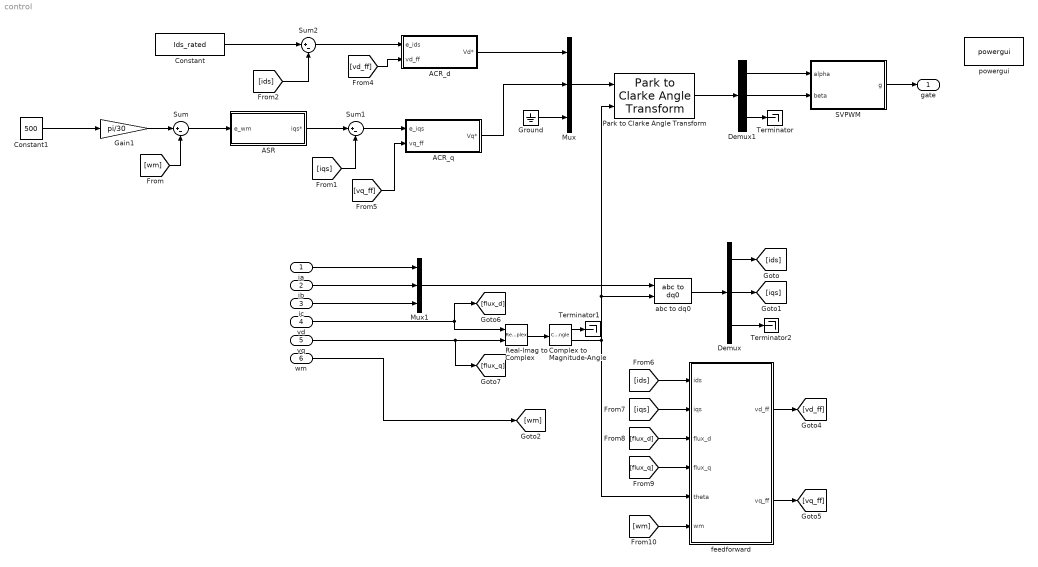
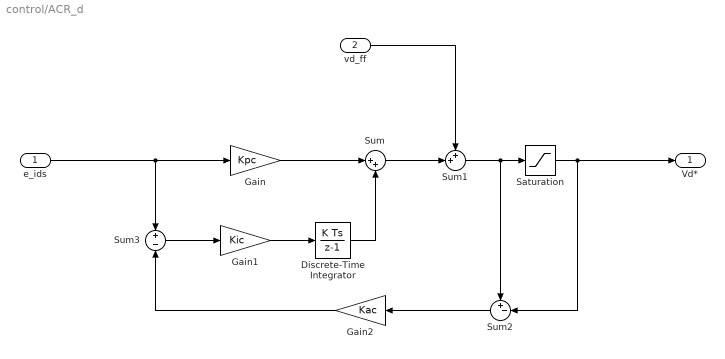
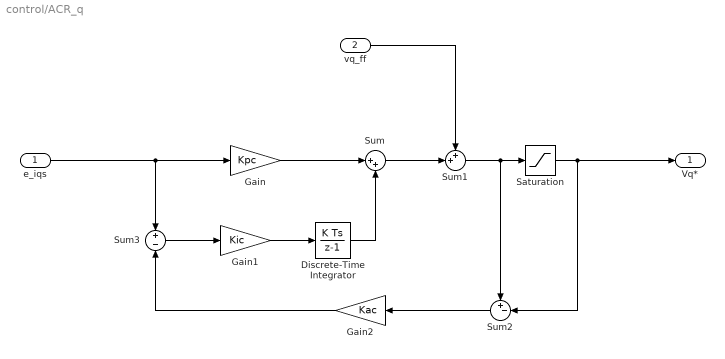
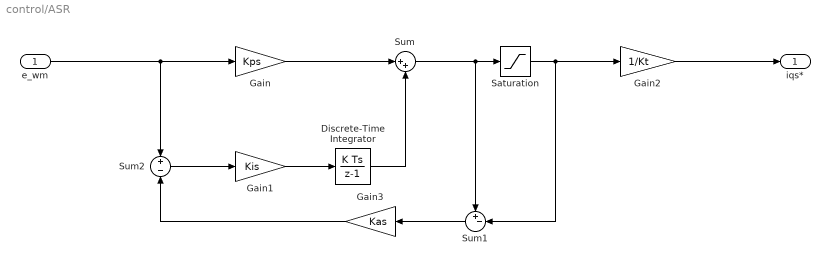
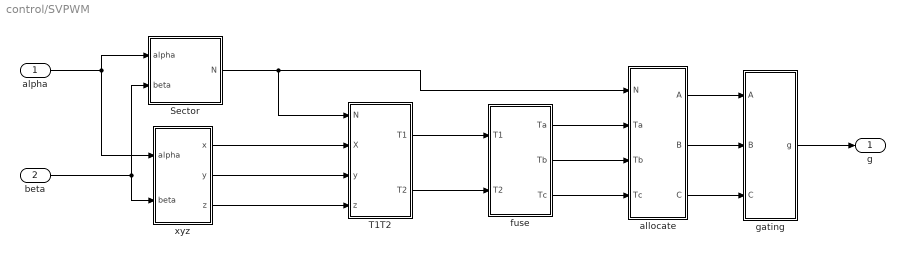
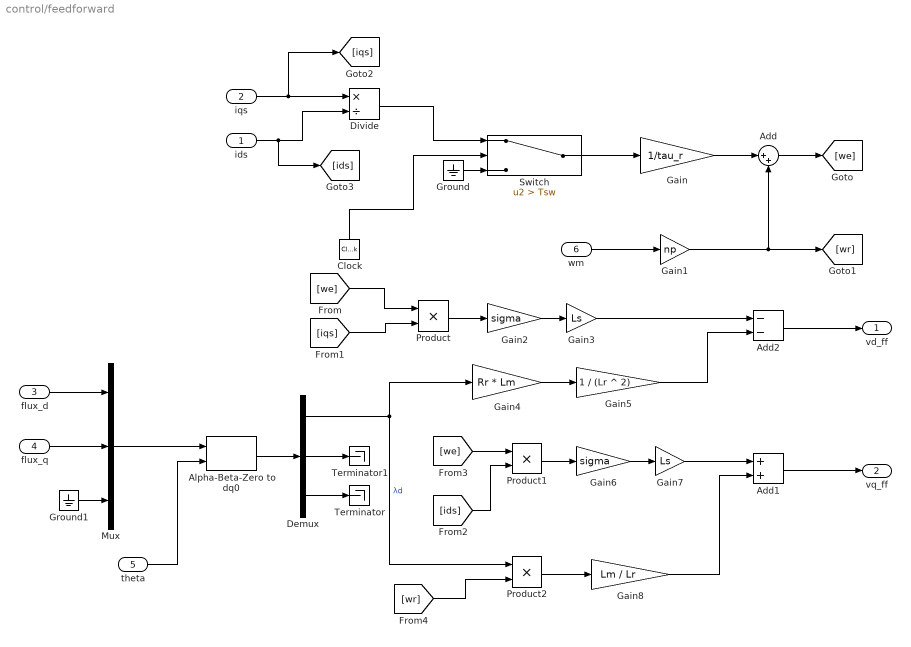
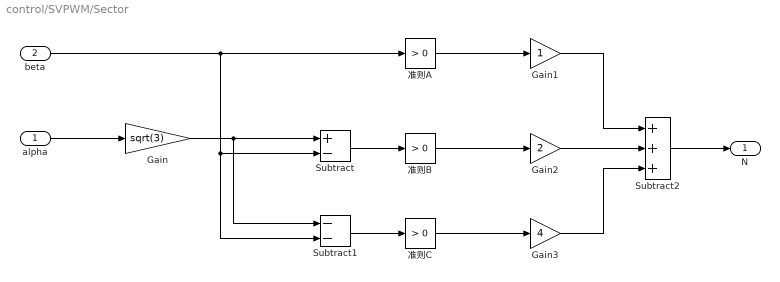
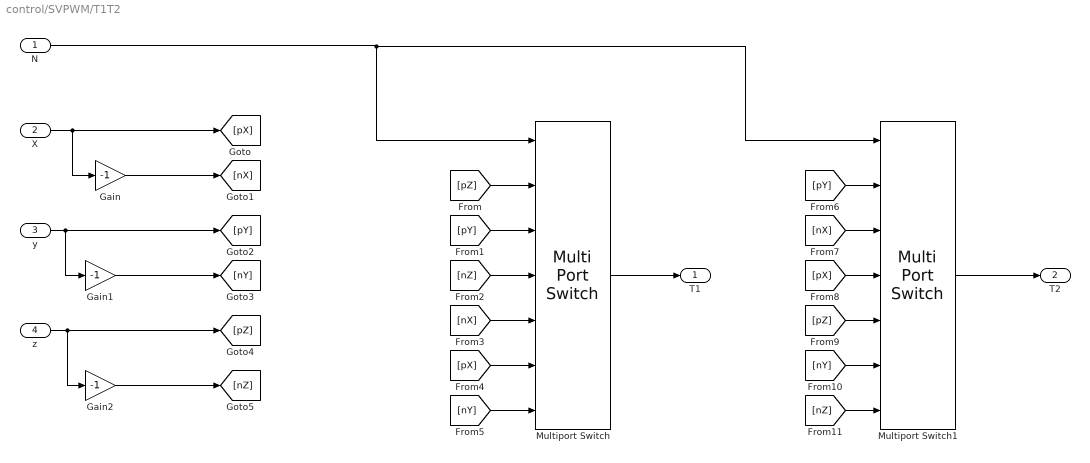
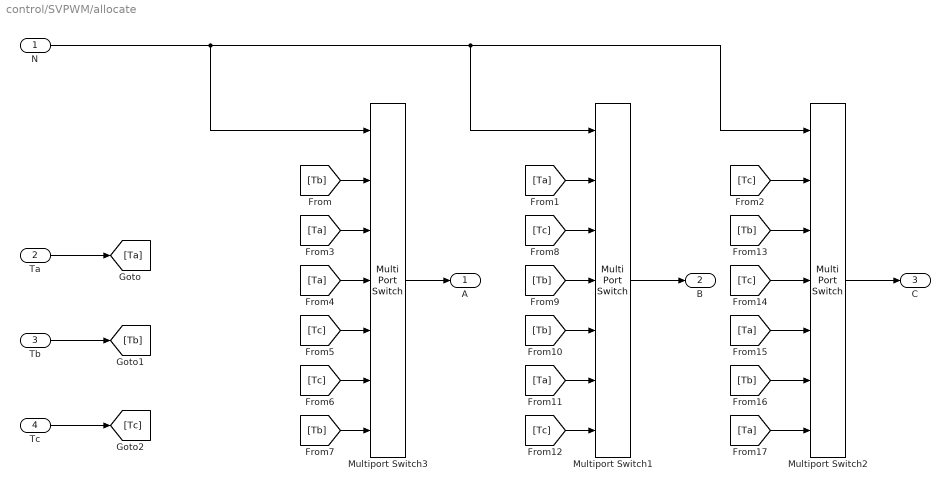
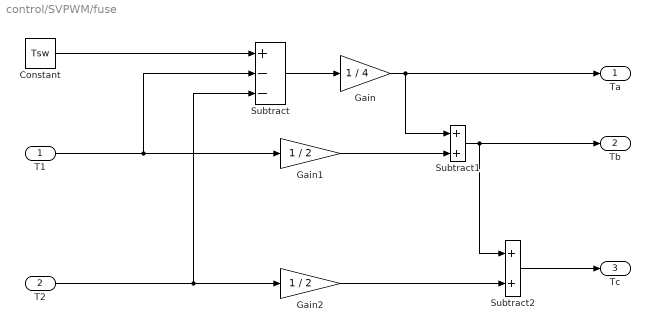
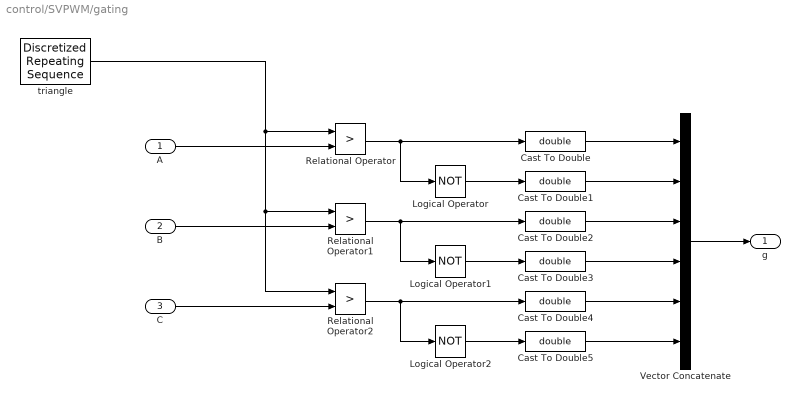
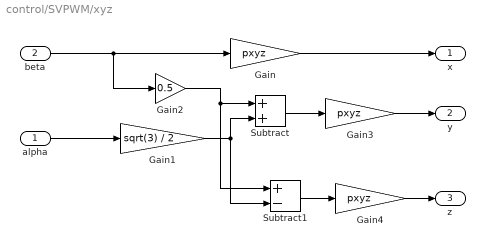
/*
 * File: control.c
 *
 * Code generated for Simulink model 'control'.
 *
 * Model version                  : 1.2
 * Simulink Coder version         : 9.9 (R2023a) 19-Nov-2022
 * C/C++ source code generated on : Thu Oct 10 17:03:55 2024
 *
 * Target selection: ert.tlc
 * Embedded hardware selection: Intel->x86-64 (Linux 64)
 * Code generation objectives:
 *    1. Execution efficiency
 *    2. RAM efficiency
 * Validation result: Not run
 */

#include "control.h"
#include "rtwtypes.h"
#include <emmintrin.h>
#include <math.h>
#include <float.h>
#include "rt_look.h"
#include <stddef.h>
#define NumBitsPerChar                 8U

/* Block signals and states (default storage) */
DW rtDW;

/* External inputs (root inport signals with default storage) */
ExtU rtU;

/* External outputs (root outports fed by signals with default storage) */
ExtY rtY;

/* Real-time model */
static RT_MODEL rtM_;
RT_MODEL *const rtM = &rtM_;
extern real_T rt_atan2d_snf(real_T u0, real_T u1);
extern real_T rt_remd_snf(real_T u0, real_T u1);
static real_T rtGetNaN(void);
static real32_T rtGetNaNF(void);

/*===========*
 * Constants *
 *===========*/
#define RT_PI                          3.14159265358979323846
#define RT_PIF                         3.1415927F
#define RT_LN_10                       2.30258509299404568402
#define RT_LN_10F                      2.3025851F
#define RT_LOG10E                      0.43429448190325182765
#define RT_LOG10EF                     0.43429449F
#define RT_E                           2.7182818284590452354
#define RT_EF                          2.7182817F

/*
 * UNUSED_PARAMETER(x)
 *   Used to specify that a function parameter (argument) is required but not
 *   accessed by the function body.
 */
#ifndef UNUSED_PARAMETER
#if defined(__LCC__)
#define UNUSED_PARAMETER(x)                                      /* do nothing */
#else

/*
 * This is the semi-ANSI standard way of indicating that an
 * unused function parameter is required.
 */
#define UNUSED_PARAMETER(x)            (void) (x)
#endif
#endif

#ifndef INTERP
#define INTERP(x,x1,x2,y1,y2)          ( (y1)+(((y2) - (y1))/((x2) - (x1)))*((x)-(x1)) )
#endif

#ifndef ZEROTECHNIQUE
#define ZEROTECHNIQUE

typedef enum {
  NORMAL_INTERP,
  AVERAGE_VALUE,
  MIDDLE_VALUE
} ZeroTechnique;

#endif

static int_T rt_GetLookupIndex(const real_T *x, int_T xlen, real_T u) ;
static real_T rt_Lookup(const real_T *x, int_T xlen, real_T u, const real_T *y);

#define NOT_USING_NONFINITE_LITERALS   1

extern real_T rtInf;
extern real_T rtMinusInf;
extern real_T rtNaN;
extern real32_T rtInfF;
extern real32_T rtMinusInfF;
extern real32_T rtNaNF;
static void rt_InitInfAndNaN(size_t realSize);
static boolean_T rtIsInf(real_T value);
static boolean_T rtIsInfF(real32_T value);
static boolean_T rtIsNaN(real_T value);
static boolean_T rtIsNaNF(real32_T value);
typedef struct {
  struct {
    uint32_T wordH;
    uint32_T wordL;
  } words;
} BigEndianIEEEDouble;

typedef struct {
  struct {
    uint32_T wordL;
    uint32_T wordH;
  } words;
} LittleEndianIEEEDouble;

typedef struct {
  union {
    real32_T wordLreal;
    uint32_T wordLuint;
  } wordL;
} IEEESingle;

real_T rtInf;
real_T rtMinusInf;
real_T rtNaN;
real32_T rtInfF;
real32_T rtMinusInfF;
real32_T rtNaNF;
static real_T rtGetInf(void);
static real32_T rtGetInfF(void);
static real_T rtGetMinusInf(void);
static real32_T rtGetMinusInfF(void);

/*
 * Initialize rtNaN needed by the generated code.
 * NaN is initialized as non-signaling. Assumes IEEE.
 */
static real_T rtGetNaN(void)
{
  size_t bitsPerReal = sizeof(real_T) * (NumBitsPerChar);
  real_T nan = 0.0;
  if (bitsPerReal == 32U) {
    nan = rtGetNaNF();
  } else {
    union {
      LittleEndianIEEEDouble bitVal;
      real_T fltVal;
    } tmpVal;

    tmpVal.bitVal.words.wordH = 0xFFF80000U;
    tmpVal.bitVal.words.wordL = 0x00000000U;
    nan = tmpVal.fltVal;
  }

  return nan;
}

/*
 * Initialize rtNaNF needed by the generated code.
 * NaN is initialized as non-signaling. Assumes IEEE.
 */
static real32_T rtGetNaNF(void)
{
  IEEESingle nanF = { { 0.0F } };

  nanF.wordL.wordLuint = 0xFFC00000U;
  return nanF.wordL.wordLreal;
}

/*
 * Routine to get the index of the input from a table using binary or
 * interpolation search.
 *
 * Inputs:
 * *x   : Pointer to table, x[0] ....x[xlen-1]
 * xlen : Number of values in xtable
 * u    : input value to look up
 *
 * Output:
 * idx  : the index into the table such that:
 * if u is negative
 * x[idx] <= u < x[idx+1]
 * else
 * x[idx] < u <= x[idx+1]
 *
 * Interpolation Search: If the table contains a large number of nearly
 * uniformly spaced entries, i.e., x[n] vs n is linear then the index
 * corresponding to the input can be found in one shot using the linear
 * interpolation formula. Therefore if you have a look-up table block with
 * many data points, using interpolation search might speed up the code.
 * Compile the generated code with the following flag:
 *
 * make_rtw OPTS=-DDOINTERPSEARCH
 *
 * to enable interpolation search.
 */
static int_T rt_GetLookupIndex(const real_T *x, int_T xlen, real_T u)
{
  int_T idx = 0;
  int_T bottom = 0;
  int_T top = xlen-1;
  int_T retValue = 0;
  boolean_T returnStatus = 0U;

#ifdef DOINTERPSEARCH

  real_T offset = 0;

#endif

  /*
   * Deal with the extreme cases first:
   *   if u <= x[bottom] then return idx = bottom
   *   if u >= x[top]    then return idx = top-1
   */
  if (u <= x[bottom]) {
    retValue = bottom;
    returnStatus = 1U;
  } else if (u >= x[top]) {
    retValue = top-1;
    returnStatus = 1U;
  } else {
    /* else required to ensure safe programming, even *
     * if it's expected that it will never be reached */
  }

  if (returnStatus == 0U) {
    if (u < 0) {
      /* For negative input find index such that: x[idx] <= u < x[idx+1] */
      for (;;) {

#ifdef DOINTERPSEARCH

        offset = (u-x[bottom])/(x[top]-x[bottom]);
        idx = bottom + (int_T)((top-bottom)*(offset-DBL_EPSILON));

#else

        idx = (bottom + top)/2;

#endif

        if (u < x[idx]) {
          top = idx - 1;
        } else if (u >= x[idx+1]) {
          bottom = idx + 1;
        } else {
          /* we have x[idx] <= u < x[idx+1], return idx */
          retValue = idx;
          break;
        }
      }
    } else {
      /* For non-negative input find index such that: x[idx] < u <= x[idx+1] */
      for (;;) {

#ifdef DOINTERPSEARCH

        offset = (u-x[bottom])/(x[top]-x[bottom]);
        idx = bottom + (int_T)((top-bottom)*(offset-DBL_EPSILON));

#else

        idx = (bottom + top)/2;

#endif

        if (u <= x[idx]) {
          top = idx - 1;
        } else if (u > x[idx+1]) {
          bottom = idx + 1;
        } else {
          /* we have x[idx] < u <= x[idx+1], return idx */
          retValue = idx;
          break;
        }
      }
    }
  }

  return retValue;
}

/* 1D lookup routine for data type of real_T. */
static real_T rt_Lookup(const real_T *x, int_T xlen, real_T u, const real_T *y)
{
  int_T idx = rt_GetLookupIndex(x, xlen, u);
  real_T num = y[idx+1] - y[idx];
  real_T den = x[idx+1] - x[idx];

  /* Due to the way the binary search is implemented
     in rt_look.c (rt_GetLookupIndex), den cannot be
     0.  Equivalently, m cannot be inf or nan. */
  real_T m = num/den;
  return (y[idx] + (m * (u - x[idx])));
}

/*
 * Initialize the rtInf, rtMinusInf, and rtNaN needed by the
 * generated code. NaN is initialized as non-signaling. Assumes IEEE.
 */
static void rt_InitInfAndNaN(size_t realSize)
{
  (void) (realSize);
  rtNaN = rtGetNaN();
  rtNaNF = rtGetNaNF();
  rtInf = rtGetInf();
  rtInfF = rtGetInfF();
  rtMinusInf = rtGetMinusInf();
  rtMinusInfF = rtGetMinusInfF();
}

/* Test if value is infinite */
static boolean_T rtIsInf(real_T value)
{
  return (boolean_T)((value==rtInf || value==rtMinusInf) ? 1U : 0U);
}

/* Test if single-precision value is infinite */
static boolean_T rtIsInfF(real32_T value)
{
  return (boolean_T)(((value)==rtInfF || (value)==rtMinusInfF) ? 1U : 0U);
}

/* Test if value is not a number */
static boolean_T rtIsNaN(real_T value)
{
  boolean_T result = (boolean_T) 0;
  size_t bitsPerReal = sizeof(real_T) * (NumBitsPerChar);
  if (bitsPerReal == 32U) {
    result = rtIsNaNF((real32_T)value);
  } else {
    union {
      LittleEndianIEEEDouble bitVal;
      real_T fltVal;
    } tmpVal;

    tmpVal.fltVal = value;
    result = (boolean_T)((tmpVal.bitVal.words.wordH & 0x7FF00000) == 0x7FF00000 &&
                         ( (tmpVal.bitVal.words.wordH & 0x000FFFFF) != 0 ||
                          (tmpVal.bitVal.words.wordL != 0) ));
  }

  return result;
}

/* Test if single-precision value is not a number */
static boolean_T rtIsNaNF(real32_T value)
{
  IEEESingle tmp;
  tmp.wordL.wordLreal = value;
  return (boolean_T)( (tmp.wordL.wordLuint & 0x7F800000) == 0x7F800000 &&
                     (tmp.wordL.wordLuint & 0x007FFFFF) != 0 );
}

/*
 * Initialize rtInf needed by the generated code.
 * Inf is initialized as non-signaling. Assumes IEEE.
 */
static real_T rtGetInf(void)
{
  size_t bitsPerReal = sizeof(real_T) * (NumBitsPerChar);
  real_T inf = 0.0;
  if (bitsPerReal == 32U) {
    inf = rtGetInfF();
  } else {
    union {
      LittleEndianIEEEDouble bitVal;
      real_T fltVal;
    } tmpVal;

    tmpVal.bitVal.words.wordH = 0x7FF00000U;
    tmpVal.bitVal.words.wordL = 0x00000000U;
    inf = tmpVal.fltVal;
  }

  return inf;
}

/*
 * Initialize rtInfF needed by the generated code.
 * Inf is initialized as non-signaling. Assumes IEEE.
 */
static real32_T rtGetInfF(void)
{
  IEEESingle infF;
  infF.wordL.wordLuint = 0x7F800000U;
  return infF.wordL.wordLreal;
}

/*
 * Initialize rtMinusInf needed by the generated code.
 * Inf is initialized as non-signaling. Assumes IEEE.
 */
static real_T rtGetMinusInf(void)
{
  size_t bitsPerReal = sizeof(real_T) * (NumBitsPerChar);
  real_T minf = 0.0;
  if (bitsPerReal == 32U) {
    minf = rtGetMinusInfF();
  } else {
    union {
      LittleEndianIEEEDouble bitVal;
      real_T fltVal;
    } tmpVal;

    tmpVal.bitVal.words.wordH = 0xFFF00000U;
    tmpVal.bitVal.words.wordL = 0x00000000U;
    minf = tmpVal.fltVal;
  }

  return minf;
}

/*
 * Initialize rtMinusInfF needed by the generated code.
 * Inf is initialized as non-signaling. Assumes IEEE.
 */
static real32_T rtGetMinusInfF(void)
{
  IEEESingle minfF;
  minfF.wordL.wordLuint = 0xFF800000U;
  return minfF.wordL.wordLreal;
}

real_T rt_atan2d_snf(real_T u0, real_T u1)
{
  real_T y;
  if (rtIsNaN(u0) || rtIsNaN(u1)) {
    y = (rtNaN);
  } else if (rtIsInf(u0) && rtIsInf(u1)) {
    int32_T tmp;
    int32_T tmp_0;
    if (u0 > 0.0) {
      tmp = 1;
    } else {
      tmp = -1;
    }

    if (u1 > 0.0) {
      tmp_0 = 1;
    } else {
      tmp_0 = -1;
    }

    y = atan2(tmp, tmp_0);
  } else if (u1 == 0.0) {
    if (u0 > 0.0) {
      y = RT_PI / 2.0;
    } else if (u0 < 0.0) {
      y = -(RT_PI / 2.0);
    } else {
      y = 0.0;
    }
  } else {
    y = atan2(u0, u1);
  }

  return y;
}

real_T rt_remd_snf(real_T u0, real_T u1)
{
  real_T y;
  if (rtIsNaN(u0) || rtIsNaN(u1) || rtIsInf(u0)) {
    y = (rtNaN);
  } else if (rtIsInf(u1)) {
    y = u0;
  } else if ((u1 != 0.0) && (u1 != trunc(u1))) {
    real_T q;
    q = fabs(u0 / u1);
    if (!(fabs(q - floor(q + 0.5)) > DBL_EPSILON * q)) {
      y = 0.0 * u0;
    } else {
      y = fmod(u0, u1);
    }
  } else {
    y = fmod(u0, u1);
  }

  return y;
}

/* Model step function */
void control_step(void)
{
  real_T rtb_Gain1[3];
  real_T rtb_ComplextoMagnitudeAngle_o2;
  real_T rtb_Gain;
  real_T rtb_Gain1_ng;
  real_T rtb_Gain3_j;
  real_T rtb_Gain4;
  real_T rtb_MultiportSwitch2;
  real_T rtb_Saturation_i;
  real_T rtb_Sum_i;
  real_T rtb_Sum_m;
  real_T rtb_Switch_idx_0;
  real_T rtb_Switch_idx_0_tmp;
  real_T rtb_Switch_idx_1;
  real_T rtb_Switch_m_idx_0;
  int32_T i;
  uint8_T rtb_Subtract2_a;
  boolean_T rtb_LogicalOperator2;
  for (i = 0; i <= 0; i += 2) {
    /* Gain: '<S20>/Gain1' incorporates:
     *  Gain: '<S20>/Gain3'
     *  Inport: '<Root>/ia'
     *  Inport: '<Root>/ib'
     *  Inport: '<Root>/ic'
     */
    _mm_storeu_pd(&rtb_Gain1[i], _mm_mul_pd(_mm_add_pd(_mm_add_pd(_mm_mul_pd
      (_mm_loadu_pd(&rtConstP.Gain3_Gain[i + 3]), _mm_set1_pd(rtU.ib)),
      _mm_mul_pd(_mm_loadu_pd(&rtConstP.Gain3_Gain[i]), _mm_set1_pd(rtU.ia))),
      _mm_mul_pd(_mm_loadu_pd(&rtConstP.Gain3_Gain[i + 6]), _mm_set1_pd(rtU.ic))),
      _mm_set1_pd(0.66666666666666663)));
  }

  for (i = 2; i < 3; i++) {
    /* Gain: '<S20>/Gain1' incorporates:
     *  Gain: '<S20>/Gain3'
     *  Inport: '<Root>/ia'
     *  Inport: '<Root>/ib'
     *  Inport: '<Root>/ic'
     */
    rtb_Gain1[i] = ((rtConstP.Gain3_Gain[i + 3] * rtU.ib + rtConstP.Gain3_Gain[i]
                     * rtU.ia) + rtConstP.Gain3_Gain[i + 6] * rtU.ic) *
      0.66666666666666663;
  }

  /* ComplexToMagnitudeAngle: '<Root>/Complex to Magnitude-Angle' incorporates:
   *  Inport: '<Root>/vd'
   *  Inport: '<Root>/vq'
   */
  rtb_ComplextoMagnitudeAngle_o2 = rt_atan2d_snf(rtU.vq, rtU.vd);

  /* Outputs for Enabled SubSystem: '<S25>/Subsystem - pi//2 delay' incorporates:
   *  EnablePort: '<S28>/Enable'
   */
  /* Outputs for Enabled SubSystem: '<S19>/Subsystem - pi//2 delay' incorporates:
   *  EnablePort: '<S23>/Enable'
   */
  /* Fcn: '<S23>/Fcn' incorporates:
   *  Fcn: '<S23>/Fcn1'
   *  Fcn: '<S28>/Fcn'
   */
  rtb_Switch_idx_0_tmp = cos(rtb_ComplextoMagnitudeAngle_o2);
  rtb_Saturation_i = sin(rtb_ComplextoMagnitudeAngle_o2);

  /* End of Outputs for SubSystem: '<S25>/Subsystem - pi//2 delay' */

  /* Switch: '<S19>/Switch' incorporates:
   *  Fcn: '<S23>/Fcn'
   *  Fcn: '<S23>/Fcn1'
   */
  rtb_Switch_idx_0 = rtb_Gain1[0] * rtb_Saturation_i - rtb_Gain1[1] *
    rtb_Switch_idx_0_tmp;
  rtb_Switch_idx_1 = rtb_Gain1[0] * rtb_Switch_idx_0_tmp + rtb_Gain1[1] *
    rtb_Saturation_i;

  /* End of Outputs for SubSystem: '<S19>/Subsystem - pi//2 delay' */

  /* Outputs for Enabled SubSystem: '<S25>/Subsystem - pi//2 delay' incorporates:
   *  EnablePort: '<S28>/Enable'
   */
  /* Switch: '<S25>/Switch' incorporates:
   *  Fcn: '<S28>/Fcn'
   *  Inport: '<Root>/vd'
   *  Inport: '<Root>/vq'
   */
  rtb_Switch_m_idx_0 = rtU.vd * rtb_Saturation_i - rtU.vq * rtb_Switch_idx_0_tmp;

  /* End of Outputs for SubSystem: '<S25>/Subsystem - pi//2 delay' */

  /* DigitalClock: '<S7>/Clock' incorporates:
   *  DigitalClock: '<S18>/Digital Clock'
   */
  rtb_Switch_idx_0_tmp = ((rtM->Timing.clockTick0) * 1.0);

  /* Switch: '<S7>/Switch' incorporates:
   *  DigitalClock: '<S7>/Clock'
   *  Product: '<S7>/Divide'
   */
  if (rtb_Switch_idx_0_tmp > 0.0001) {
    rtb_Saturation_i = rtb_Switch_idx_1 / rtb_Switch_idx_0;
  } else {
    rtb_Saturation_i = 0.0;
  }

  /* End of Switch: '<S7>/Switch' */

  /* Gain: '<S7>/Gain' */
  rtb_Gain = 6.23416784551107 * rtb_Saturation_i;

  /* Gain: '<S7>/Gain1' incorporates:
   *  Inport: '<Root>/wm'
   */
  rtb_Saturation_i = 2.0 * rtU.wm;

  /* Sum: '<S7>/Add' */
  rtb_Gain += rtb_Saturation_i;

  /* Sum: '<S1>/Sum1' incorporates:
   *  Constant: '<Root>/Constant'
   *  DiscreteIntegrator: '<S1>/Discrete-Time Integrator'
   *  Gain: '<S1>/Gain'
   *  Gain: '<S7>/Gain2'
   *  Gain: '<S7>/Gain3'
   *  Gain: '<S7>/Gain4'
   *  Gain: '<S7>/Gain5'
   *  Product: '<S7>/Product'
   *  Sum: '<Root>/Sum2'
   *  Sum: '<S1>/Sum'
   *  Sum: '<S7>/Add2'
   */
  rtb_Sum_i = ((0.0 - rtb_Gain * rtb_Switch_idx_1 * 0.058148172073290927 *
                0.060793999999999994) - 0.022361 * rtb_Switch_m_idx_0 *
               270.56932718377169) + ((9.4040441629117311 - rtb_Switch_idx_0) *
    15.7034858759281 + rtDW.DiscreteTimeIntegrator_DSTATE);

  /* Saturate: '<S1>/Saturation' */
  if (rtb_Sum_i > 359.2584956081995) {
    rtb_Gain1_ng = 359.2584956081995;
  } else if (rtb_Sum_i < -359.2584956081995) {
    rtb_Gain1_ng = -359.2584956081995;
  } else {
    rtb_Gain1_ng = rtb_Sum_i;
  }

  /* End of Saturate: '<S1>/Saturation' */

  /* Sum: '<S1>/Sum2' */
  rtb_Sum_i -= rtb_Gain1_ng;

  /* Product: '<S7>/Product1' */
  rtb_Sum_m = rtb_Gain * rtb_Switch_idx_0;

  /* Gain: '<S7>/Gain8' incorporates:
   *  Product: '<S7>/Product2'
   */
  rtb_Switch_m_idx_0 = rtb_Switch_m_idx_0 * rtb_Saturation_i *
    0.97049050893180255;

  /* Sum: '<S3>/Sum' incorporates:
   *  DiscreteIntegrator: '<S3>/Discrete-Time Integrator'
   *  Gain: '<S3>/Gain'
   *  Inport: '<Root>/wm'
   *  Sum: '<Root>/Sum'
   */
  rtb_Gain = (52.359877559829883 - rtU.wm) * 13.859596918105916 +
    rtDW.DiscreteTimeIntegrator_DSTATE_g;

  /* Saturate: '<S3>/Saturation' */
  if (rtb_Gain > 48.400544337535294) {
    rtb_Saturation_i = 48.400544337535294;
  } else if (rtb_Gain < -48.400544337535294) {
    rtb_Saturation_i = -48.400544337535294;
  } else {
    rtb_Saturation_i = rtb_Gain;
  }

  /* End of Saturate: '<S3>/Saturation' */

  /* Sum: '<Root>/Sum1' incorporates:
   *  Gain: '<S3>/Gain2'
   */
  rtb_Switch_idx_1 = 0.61904294884986732 * rtb_Saturation_i - rtb_Switch_idx_1;

  /* Sum: '<S2>/Sum1' incorporates:
   *  DiscreteIntegrator: '<S2>/Discrete-Time Integrator'
   *  Gain: '<S2>/Gain'
   *  Gain: '<S7>/Gain6'
   *  Gain: '<S7>/Gain7'
   *  Sum: '<S2>/Sum'
   *  Sum: '<S7>/Add1'
   */
  rtb_Sum_m = (0.058148172073290927 * rtb_Sum_m * 0.060793999999999994 +
               rtb_Switch_m_idx_0) + (15.7034858759281 * rtb_Switch_idx_1 +
    rtDW.DiscreteTimeIntegrator_DSTATE_p);

  /* Saturate: '<S2>/Saturation' */
  if (rtb_Sum_m > 359.2584956081995) {
    rtb_Switch_m_idx_0 = 359.2584956081995;
  } else if (rtb_Sum_m < -359.2584956081995) {
    rtb_Switch_m_idx_0 = -359.2584956081995;
  } else {
    rtb_Switch_m_idx_0 = rtb_Sum_m;
  }

  /* End of Saturate: '<S2>/Saturation' */

  /* Fcn: '<S4>/beta' incorporates:
   *  Fcn: '<S4>/alpha'
   */
  rtb_MultiportSwitch2 = cos(1.5707963267948966 - rtb_ComplextoMagnitudeAngle_o2);
  rtb_Gain4 = sin(1.5707963267948966 - rtb_ComplextoMagnitudeAngle_o2);
  rtb_ComplextoMagnitudeAngle_o2 = -rtb_Gain4 * rtb_Gain1_ng +
    rtb_MultiportSwitch2 * rtb_Switch_m_idx_0;

  /* Fcn: '<S4>/alpha' */
  rtb_Gain1_ng = rtb_MultiportSwitch2 * rtb_Gain1_ng + rtb_Gain4 *
    rtb_Switch_m_idx_0;

  /* Gain: '<S9>/Gain' */
  rtb_MultiportSwitch2 = 1.7320508075688772 * rtb_Gain1_ng;

  /* Sum: '<S9>/Subtract2' incorporates:
   *  Constant: '<S15>/Constant'
   *  Constant: '<S16>/Constant'
   *  Constant: '<S17>/Constant'
   *  Gain: '<S9>/Gain2'
   *  Gain: '<S9>/Gain3'
   *  RelationalOperator: '<S15>/Compare'
   *  RelationalOperator: '<S16>/Compare'
   *  RelationalOperator: '<S17>/Compare'
   *  Sum: '<S9>/Subtract'
   *  Sum: '<S9>/Subtract1'
   */
  rtb_Subtract2_a = (uint8_T)(((uint32_T)((rtb_MultiportSwitch2 -
    rtb_ComplextoMagnitudeAngle_o2 > 0.0) << 1) + (uint32_T)
    (rtb_ComplextoMagnitudeAngle_o2 > 0.0)) + (uint32_T)(((0.0 -
    rtb_MultiportSwitch2) - rtb_ComplextoMagnitudeAngle_o2 > 0.0) << 2));

  /* Gain: '<S14>/Gain2' */
  rtb_MultiportSwitch2 = 0.5 * rtb_ComplextoMagnitudeAngle_o2;

  /* Gain: '<S14>/Gain1' */
  rtb_Gain1_ng *= 0.8660254037844386;

  /* Gain: '<S14>/Gain4' incorporates:
   *  Sum: '<S14>/Subtract1'
   */
  rtb_Gain4 = (rtb_MultiportSwitch2 - rtb_Gain1_ng) * 3.4641016151377545E-7;

  /* Gain: '<S14>/Gain3' incorporates:
   *  Sum: '<S14>/Subtract'
   */
  rtb_Gain3_j = (rtb_MultiportSwitch2 + rtb_Gain1_ng) * 3.4641016151377545E-7;

  /* MultiPortSwitch: '<S10>/Multiport Switch' incorporates:
   *  Gain: '<S10>/Gain'
   *  Gain: '<S10>/Gain1'
   *  Gain: '<S10>/Gain2'
   *  Gain: '<S14>/Gain'
   *  Gain: '<S14>/Gain3'
   *  Gain: '<S14>/Gain4'
   *  Sum: '<S14>/Subtract'
   *  Sum: '<S14>/Subtract1'
   */
  switch (rtb_Subtract2_a) {
   case 1:
    rtb_MultiportSwitch2 = (rtb_MultiportSwitch2 - rtb_Gain1_ng) *
      3.4641016151377545E-7;

    /* MultiPortSwitch: '<S10>/Multiport Switch1' incorporates:
     *  Gain: '<S14>/Gain3'
     *  Gain: '<S14>/Gain4'
     *  Sum: '<S14>/Subtract1'
     */
    rtb_ComplextoMagnitudeAngle_o2 = rtb_Gain3_j;
    break;

   case 2:
    rtb_MultiportSwitch2 = (rtb_MultiportSwitch2 + rtb_Gain1_ng) *
      3.4641016151377545E-7;

    /* MultiPortSwitch: '<S10>/Multiport Switch1' incorporates:
     *  Gain: '<S10>/Gain'
     *  Gain: '<S14>/Gain'
     *  Gain: '<S14>/Gain3'
     *  Sum: '<S14>/Subtract'
     */
    rtb_ComplextoMagnitudeAngle_o2 = -(3.4641016151377545E-7 *
      rtb_ComplextoMagnitudeAngle_o2);
    break;

   case 3:
    rtb_MultiportSwitch2 = -((rtb_MultiportSwitch2 - rtb_Gain1_ng) *
      3.4641016151377545E-7);

    /* MultiPortSwitch: '<S10>/Multiport Switch1' incorporates:
     *  Gain: '<S10>/Gain2'
     *  Gain: '<S14>/Gain'
     *  Gain: '<S14>/Gain4'
     *  Sum: '<S14>/Subtract1'
     */
    rtb_ComplextoMagnitudeAngle_o2 *= 3.4641016151377545E-7;
    break;

   case 4:
    rtb_MultiportSwitch2 = -(3.4641016151377545E-7 *
      rtb_ComplextoMagnitudeAngle_o2);

    /* MultiPortSwitch: '<S10>/Multiport Switch1' incorporates:
     *  Gain: '<S10>/Gain'
     *  Gain: '<S14>/Gain'
     *  Gain: '<S14>/Gain4'
     */
    rtb_ComplextoMagnitudeAngle_o2 = rtb_Gain4;
    break;

   case 5:
    rtb_MultiportSwitch2 = 3.4641016151377545E-7 *
      rtb_ComplextoMagnitudeAngle_o2;

    /* MultiPortSwitch: '<S10>/Multiport Switch1' incorporates:
     *  Gain: '<S10>/Gain1'
     *  Gain: '<S14>/Gain'
     *  Gain: '<S14>/Gain3'
     */
    rtb_ComplextoMagnitudeAngle_o2 = -rtb_Gain3_j;
    break;

   default:
    rtb_MultiportSwitch2 = -((rtb_MultiportSwitch2 + rtb_Gain1_ng) *
      3.4641016151377545E-7);

    /* MultiPortSwitch: '<S10>/Multiport Switch1' incorporates:
     *  Gain: '<S10>/Gain1'
     *  Gain: '<S10>/Gain2'
     *  Gain: '<S14>/Gain3'
     *  Gain: '<S14>/Gain4'
     *  Sum: '<S14>/Subtract'
     */
    rtb_ComplextoMagnitudeAngle_o2 = -rtb_Gain4;
    break;
  }

  /* End of MultiPortSwitch: '<S10>/Multiport Switch' */

  /* Gain: '<S12>/Gain' incorporates:
   *  Constant: '<S12>/Constant'
   *  Sum: '<S12>/Subtract'
   */
  rtb_Gain1_ng = ((0.0001 - rtb_MultiportSwitch2) -
                  rtb_ComplextoMagnitudeAngle_o2) * 0.25;

  /* Sum: '<S12>/Subtract1' incorporates:
   *  Gain: '<S12>/Gain1'
   */
  rtb_Gain4 = 0.5 * rtb_MultiportSwitch2 + rtb_Gain1_ng;

  /* Sum: '<S12>/Subtract2' incorporates:
   *  Gain: '<S12>/Gain2'
   */
  rtb_Gain3_j = 0.5 * rtb_ComplextoMagnitudeAngle_o2 + rtb_Gain4;

  /* MultiPortSwitch: '<S11>/Multiport Switch3' */
  switch (rtb_Subtract2_a) {
   case 1:
    rtb_MultiportSwitch2 = rtb_Gain4;
    break;

   case 2:
    rtb_MultiportSwitch2 = rtb_Gain1_ng;
    break;

   case 3:
    rtb_MultiportSwitch2 = rtb_Gain1_ng;
    break;

   case 4:
    rtb_MultiportSwitch2 = rtb_Gain3_j;
    break;

   case 5:
    rtb_MultiportSwitch2 = rtb_Gain3_j;
    break;

   default:
    rtb_MultiportSwitch2 = rtb_Gain4;
    break;
  }

  /* End of MultiPortSwitch: '<S11>/Multiport Switch3' */

  /* Lookup: '<S18>/Look-Up Table' incorporates:
   *  Fcn: '<S18>/Fcn1'
   */
  rtb_ComplextoMagnitudeAngle_o2 = rt_Lookup(&rtConstP.LookUpTable_XData[0], 3,
    rt_remd_snf(rtb_Switch_idx_0_tmp, 0.0001), &rtConstP.LookUpTable_YData[0]);

  /* RelationalOperator: '<S13>/Relational Operator' */
  rtb_LogicalOperator2 = (rtb_ComplextoMagnitudeAngle_o2 > rtb_MultiportSwitch2);

  /* DataTypeConversion: '<S13>/Cast To Double' incorporates:
   *  Outport: '<Root>/gate'
   */
  rtY.gate[0] = rtb_LogicalOperator2;

  /* DataTypeConversion: '<S13>/Cast To Double1' incorporates:
   *  Logic: '<S13>/Logical Operator'
   *  Outport: '<Root>/gate'
   */
  rtY.gate[1] = !rtb_LogicalOperator2;

  /* MultiPortSwitch: '<S11>/Multiport Switch1' */
  switch (rtb_Subtract2_a) {
   case 1:
    rtb_MultiportSwitch2 = rtb_Gain1_ng;
    break;

   case 2:
    rtb_MultiportSwitch2 = rtb_Gain3_j;
    break;

   case 3:
    rtb_MultiportSwitch2 = rtb_Gain4;
    break;

   case 4:
    rtb_MultiportSwitch2 = rtb_Gain4;
    break;

   case 5:
    rtb_MultiportSwitch2 = rtb_Gain1_ng;
    break;

   default:
    rtb_MultiportSwitch2 = rtb_Gain3_j;
    break;
  }

  /* End of MultiPortSwitch: '<S11>/Multiport Switch1' */

  /* RelationalOperator: '<S13>/Relational Operator1' */
  rtb_LogicalOperator2 = (rtb_ComplextoMagnitudeAngle_o2 > rtb_MultiportSwitch2);

  /* DataTypeConversion: '<S13>/Cast To Double2' incorporates:
   *  Outport: '<Root>/gate'
   */
  rtY.gate[2] = rtb_LogicalOperator2;

  /* DataTypeConversion: '<S13>/Cast To Double3' incorporates:
   *  Logic: '<S13>/Logical Operator1'
   *  Outport: '<Root>/gate'
   */
  rtY.gate[3] = !rtb_LogicalOperator2;

  /* MultiPortSwitch: '<S11>/Multiport Switch2' */
  switch (rtb_Subtract2_a) {
   case 1:
    rtb_MultiportSwitch2 = rtb_Gain3_j;
    break;

   case 2:
    rtb_MultiportSwitch2 = rtb_Gain4;
    break;

   case 3:
    rtb_MultiportSwitch2 = rtb_Gain3_j;
    break;

   case 4:
    rtb_MultiportSwitch2 = rtb_Gain1_ng;
    break;

   case 5:
    rtb_MultiportSwitch2 = rtb_Gain4;
    break;

   default:
    rtb_MultiportSwitch2 = rtb_Gain1_ng;
    break;
  }

  /* End of MultiPortSwitch: '<S11>/Multiport Switch2' */

  /* RelationalOperator: '<S13>/Relational Operator2' */
  rtb_LogicalOperator2 = (rtb_ComplextoMagnitudeAngle_o2 > rtb_MultiportSwitch2);

  /* DataTypeConversion: '<S13>/Cast To Double4' incorporates:
   *  Outport: '<Root>/gate'
   */
  rtY.gate[4] = rtb_LogicalOperator2;

  /* DataTypeConversion: '<S13>/Cast To Double5' incorporates:
   *  Logic: '<S13>/Logical Operator2'
   *  Outport: '<Root>/gate'
   */
  rtY.gate[5] = !rtb_LogicalOperator2;

  /* Update for DiscreteIntegrator: '<S1>/Discrete-Time Integrator' incorporates:
   *  Constant: '<Root>/Constant'
   *  Gain: '<S1>/Gain1'
   *  Gain: '<S1>/Gain2'
   *  Sum: '<Root>/Sum2'
   *  Sum: '<S1>/Sum3'
   */
  rtDW.DiscreteTimeIntegrator_DSTATE += ((9.4040441629117311 - rtb_Switch_idx_0)
    - 0.063680128596982508 * rtb_Sum_i) * 2896.152729496454;

  /* Update for DiscreteIntegrator: '<S3>/Discrete-Time Integrator' incorporates:
   *  Gain: '<S3>/Gain1'
   *  Gain: '<S3>/Gain3'
   *  Inport: '<Root>/wm'
   *  Sum: '<Root>/Sum'
   *  Sum: '<S3>/Sum1'
   *  Sum: '<S3>/Sum2'
   */
  rtDW.DiscreteTimeIntegrator_DSTATE_g += ((52.359877559829883 - rtU.wm) -
    (rtb_Gain - rtb_Saturation_i) * 0.072152170507471164) * 2462.6907165410848;

  /* Update for DiscreteIntegrator: '<S2>/Discrete-Time Integrator' incorporates:
   *  Gain: '<S2>/Gain1'
   *  Gain: '<S2>/Gain2'
   *  Sum: '<S2>/Sum2'
   *  Sum: '<S2>/Sum3'
   */
  rtDW.DiscreteTimeIntegrator_DSTATE_p += (rtb_Switch_idx_1 - (rtb_Sum_m -
    rtb_Switch_m_idx_0) * 0.063680128596982508) * 2896.152729496454;

  /* Update absolute time for base rate */
  /* The "clockTick0" counts the number of times the code of this task has
   * been executed. The resolution of this integer timer is 1.0, which is the step size
   * of the task. Size of "clockTick0" ensures timer will not overflow during the
   * application lifespan selected.
   */
  rtM->Timing.clockTick0++;
}
